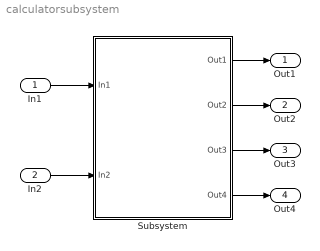
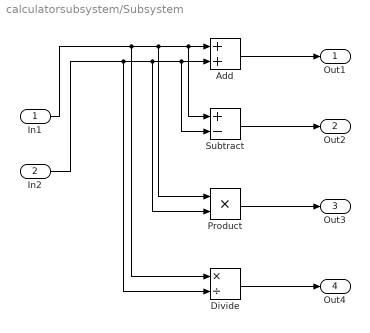
/*
 * File: calculatorsubsystem.c
 *
 * Code generated for Simulink model 'calculatorsubsystem'.
 *
 * Model version                  : 1.2
 * Simulink Coder version         : 8.10 (R2016a) 10-Feb-2016
 * C/C++ source code generated on : Sat Feb 12 19:02:40 2022
 *
 * Target selection: ert.tlc
 * Embedded hardware selection: Intel->x86-64 (Windows64)
 * Code generation objectives: Unspecified
 * Validation result: Not run
 */

#include "calculatorsubsystem.h"
#include "calculatorsubsystem_private.h"

/* Block signals (auto storage) */
B_calculatorsubsystem_T calculatorsubsystem_B;

/* External inputs (root inport signals with auto storage) */
ExtU_calculatorsubsystem_T calculatorsubsystem_U;

/* External outputs (root outports fed by signals with auto storage) */
ExtY_calculatorsubsystem_T calculatorsubsystem_Y;

/* Real-time model */
RT_MODEL_calculatorsubsystem_T calculatorsubsystem_M_;
RT_MODEL_calculatorsubsystem_T *const calculatorsubsystem_M =
  &calculatorsubsystem_M_;

/* Output and update for atomic system: '<Root>/Subsystem' */
void calculatorsubsystem_Subsystem(uint8_T rtu_In1, uint8_T rtu_In2,
  B_Subsystem_calculatorsubsyst_T *localB)
{
  /* Sum: '<S1>/Add' */
  localB->Add = (uint8_T)((uint32_T)rtu_In1 + rtu_In2);

  /* Product: '<S1>/Divide' */
  localB->Divide = (uint8_T)(rtu_In2 == 0U ? MAX_uint32_T : (uint32_T)rtu_In1 /
    rtu_In2);

  /* Product: '<S1>/Product' */
  localB->Product = (uint16_T)((uint32_T)rtu_In1 * rtu_In2);

  /* Sum: '<S1>/Subtract' */
  localB->Subtract = (uint8_T)(rtu_In1 - rtu_In2);
}

/* Model step function */
void calculatorsubsystem_step(void)
{
  /* Outputs for Atomic SubSystem: '<Root>/Subsystem' */

  /* Inport: '<Root>/In1' incorporates:
   *  Inport: '<Root>/In2'
   */
  calculatorsubsystem_Subsystem(calculatorsubsystem_U.In1,
    calculatorsubsystem_U.In2, &calculatorsubsystem_B.Subsystem);

  /* End of Outputs for SubSystem: '<Root>/Subsystem' */

  /* Outport: '<Root>/Out1' */
  calculatorsubsystem_Y.Out1 = calculatorsubsystem_B.Subsystem.Add;

  /* Outport: '<Root>/Out2' */
  calculatorsubsystem_Y.Out2 = calculatorsubsystem_B.Subsystem.Subtract;

  /* Outport: '<Root>/Out3' */
  calculatorsubsystem_Y.Out3 = calculatorsubsystem_B.Subsystem.Product;

  /* Outport: '<Root>/Out4' */
  calculatorsubsystem_Y.Out4 = calculatorsubsystem_B.Subsystem.Divide;
}
